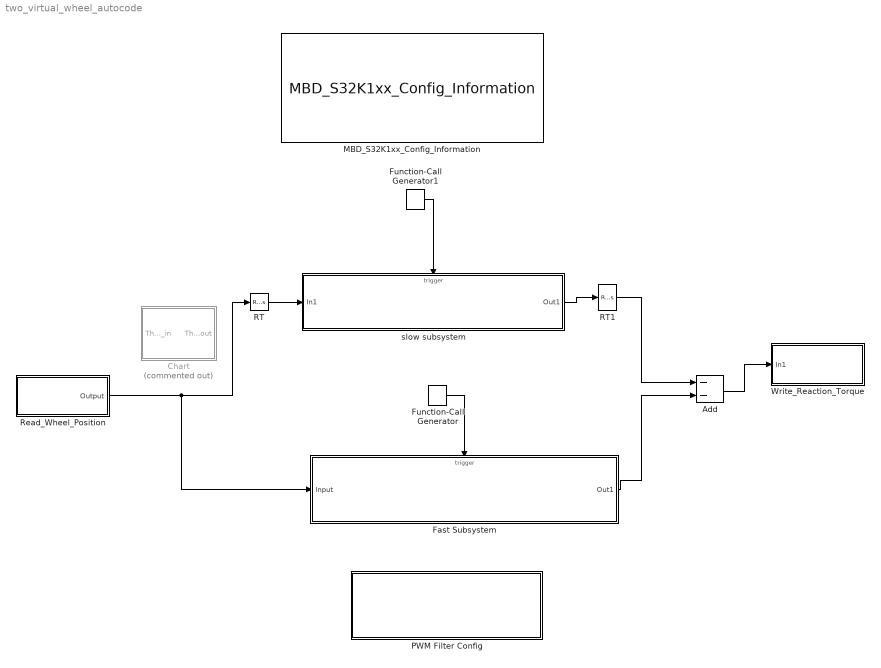
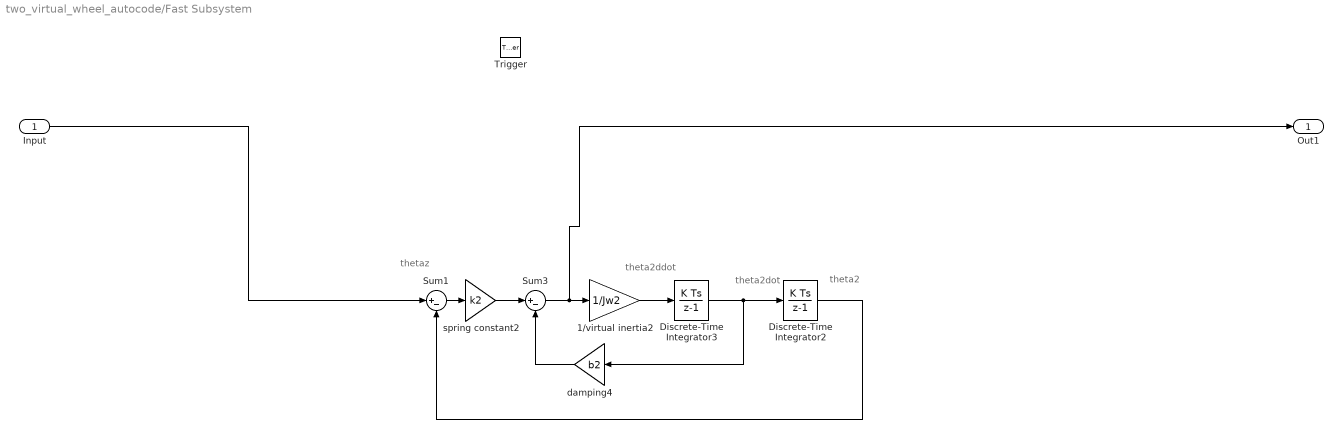
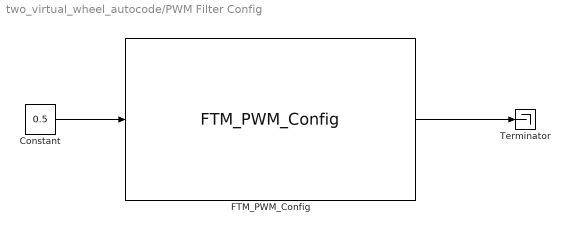
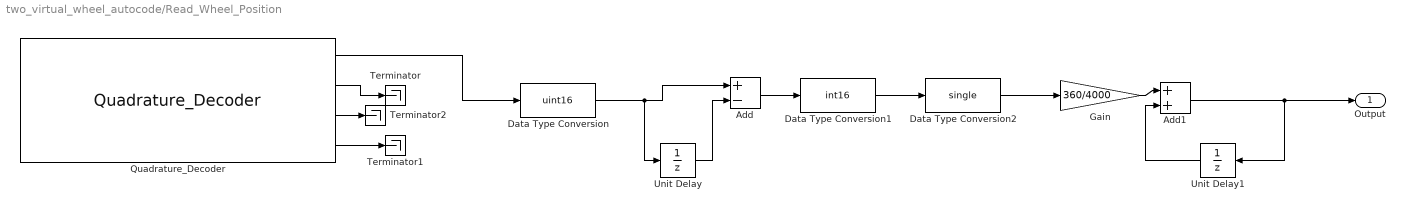
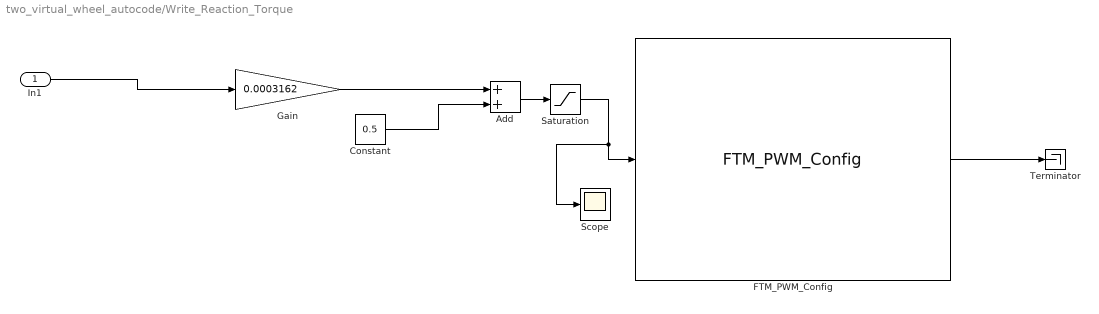
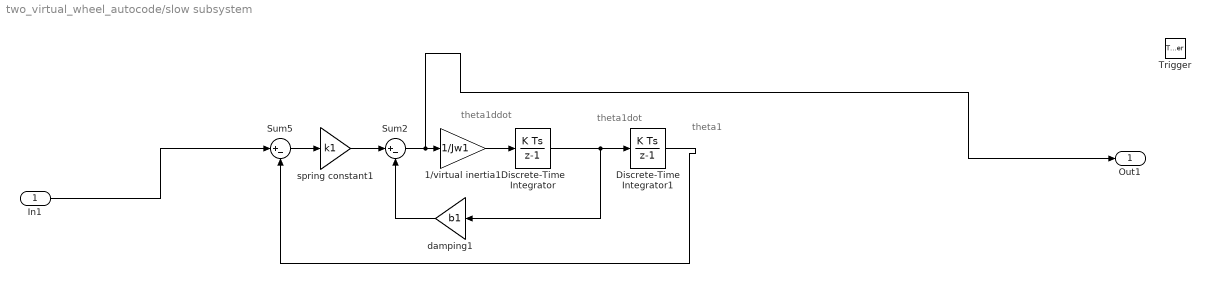
== stateflow chart two_virtual_wheel_autocode/Chart ==
  state zero
    du: Theta_out = 0
  state above
    du: Theta_out = 45
  state Below
    du: Theta_out = -45
  (default) -> zero
  above -> zero : [Theta_in < 45]
  zero -> above [order 1] : [Theta_in >= 45]
  Below -> zero : [Theta_in > -45]
  zero -> Below [order 2] : [Theta_in <= -45]
  data: Theta_in input single; Theta_out output single

/*
 * Academic License - for use in teaching, academic research, and meeting
 * course requirements at degree granting institutions only.  Not for
 * government, commercial, or other organizational use.
 *
 * File: two_virtual_wheel_autocode.c
 *
 * Code generated for Simulink model 'two_virtual_wheel_autocode'.
 *
 * Model version                   : 1.13
 * Simulink Coder version          : 9.3 (R2020a) 18-Nov-2019
 * MBDT for S32K1xx Series Version : 4.1.0 (R2017b-R2019a) 22-Jul-2019
 * C/C++ source code generated on  : Thu Sep 19 14:09:02 2024
 *
 * Target selection: mbd_s32k.tlc
 * Embedded hardware selection: ARM Compatible->ARM Cortex
 * Code generation objective: Traceability
 * Validation result: Not run
 */

#include "two_virtual_wheel_autocode.h"
#include "two_virtual_wheel_autocode_private.h"

/* Block signals (default storage) */
B_two_virtual_wheel_autocode_T two_virtual_wheel_autocode_B;

/* Block states (default storage) */
DW_two_virtual_wheel_autocode_T two_virtual_wheel_autocode_DW;

/* Real-time model */
RT_MODEL_two_virtual_wheel_au_T two_virtual_wheel_autocode_M_;
RT_MODEL_two_virtual_wheel_au_T *const two_virtual_wheel_autocode_M =
  &two_virtual_wheel_autocode_M_;
static void rate_scheduler(void);

/*
 *   This function updates active task flag for each subrate.
 * The function is called at model base rate, hence the
 * generated code self-manages all its subrates.
 */
static void rate_scheduler(void)
{
  /* Compute which subrates run during the next base time step.  Subrates
   * are an integer multiple of the base rate counter.  Therefore, the subtask
   * counter is reset when it reaches its limit (zero means run).
   */
  (two_virtual_wheel_autocode_M->Timing.TaskCounters.TID[1])++;
  if ((two_virtual_wheel_autocode_M->Timing.TaskCounters.TID[1]) > 9) {/* Sample time: [0.02s, 0.0s] */
    two_virtual_wheel_autocode_M->Timing.TaskCounters.TID[1] = 0;
  }
}

/* Enable for function-call system: '<Root>/Fast Subsystem' */
void fast_subsystem_Enable(DW_fast_subsystem_T *localDW)
{
  localDW->FastSubsystem_RESET_ELAPS_T = true;

  /* Enable for DiscreteIntegrator: '<S1>/Discrete-Time Integrator2' */
  localDW->DiscreteTimeIntegrator2_SYSTEM_ = 1U;

  /* Enable for DiscreteIntegrator: '<S1>/Discrete-Time Integrator3' */
  localDW->DiscreteTimeIntegrator3_SYSTEM_ = 1U;
}

/* Output and update for function-call system: '<Root>/Fast Subsystem' */
void fast_subsystem(RT_MODEL_two_virtual_wheel_au_T * const
                    two_virtual_wheel_autocode_M, real32_T rtu_Input, real32_T
                    *rty_Out1, DW_fast_subsystem_T *localDW)
{
  uint32_T FastSubsystem_ELAPS_T;
  if (localDW->FastSubsystem_RESET_ELAPS_T) {
    FastSubsystem_ELAPS_T = 0U;
  } else {
    FastSubsystem_ELAPS_T = two_virtual_wheel_autocode_M->Timing.clockTick0 -
      localDW->FastSubsystem_PREV_T;
  }

  localDW->FastSubsystem_PREV_T =
    two_virtual_wheel_autocode_M->Timing.clockTick0;
  localDW->FastSubsystem_RESET_ELAPS_T = false;

  /* DiscreteIntegrator: '<S1>/Discrete-Time Integrator2' */
  if (localDW->DiscreteTimeIntegrator2_SYSTEM_ == 0) {
    localDW->DiscreteTimeIntegrator2_DSTATE += 0.002F * (real32_T)
      FastSubsystem_ELAPS_T * localDW->DiscreteTimeIntegrator2_PREV_U;
  }

  /* End of DiscreteIntegrator: '<S1>/Discrete-Time Integrator2' */

  /* DiscreteIntegrator: '<S1>/Discrete-Time Integrator3' */
  if (localDW->DiscreteTimeIntegrator3_SYSTEM_ == 0) {
    localDW->DiscreteTimeIntegrator3_DSTATE += 0.002F * (real32_T)
      FastSubsystem_ELAPS_T * localDW->DiscreteTimeIntegrator3_PREV_U;
  }

  /* End of DiscreteIntegrator: '<S1>/Discrete-Time Integrator3' */

  /* Sum: '<S1>/Sum3' incorporates:
   *  Gain: '<S1>/damping4'
   *  Gain: '<S1>/spring  constant2'
   *  Sum: '<S1>/Sum1'
   */
  *rty_Out1 = (rtu_Input - localDW->DiscreteTimeIntegrator2_DSTATE) * 3.75F -
    0.0075F * localDW->DiscreteTimeIntegrator3_DSTATE;

  /* Update for DiscreteIntegrator: '<S1>/Discrete-Time Integrator2' */
  localDW->DiscreteTimeIntegrator2_SYSTEM_ = 0U;
  localDW->DiscreteTimeIntegrator2_PREV_U =
    localDW->DiscreteTimeIntegrator3_DSTATE;

  /* Update for DiscreteIntegrator: '<S1>/Discrete-Time Integrator3' incorporates:
   *  Gain: '<S1>/1//virtual inertia2'
   */
  localDW->DiscreteTimeIntegrator3_SYSTEM_ = 0U;
  localDW->DiscreteTimeIntegrator3_PREV_U = 13.8696251F * *rty_Out1;
}

/* Enable for function-call system: '<Root>/slow subsystem' */
void slow_subsystem_Enable(DW_slow_subsystem_T *localDW)
{
  localDW->slowsubsystem_RESET_ELAPS_T = true;

  /* Enable for DiscreteIntegrator: '<S5>/Discrete-Time Integrator1' */
  localDW->DiscreteTimeIntegrator1_SYSTEM_ = 1U;

  /* Enable for DiscreteIntegrator: '<S5>/Discrete-Time Integrator' */
  localDW->DiscreteTimeIntegrator_SYSTEM_E = 1U;
}

/* Output and update for function-call system: '<Root>/slow subsystem' */
void slow_subsystem(RT_MODEL_two_virtual_wheel_au_T * const
                    two_virtual_wheel_autocode_M, real32_T rtu_In1, real32_T
                    *rty_Out1, DW_slow_subsystem_T *localDW)
{
  uint32_T slowsubsystem_ELAPS_T;
  if (localDW->slowsubsystem_RESET_ELAPS_T) {
    slowsubsystem_ELAPS_T = 0U;
  } else {
    slowsubsystem_ELAPS_T = two_virtual_wheel_autocode_M->Timing.clockTick1 -
      localDW->slowsubsystem_PREV_T;
  }

  localDW->slowsubsystem_PREV_T =
    two_virtual_wheel_autocode_M->Timing.clockTick1;
  localDW->slowsubsystem_RESET_ELAPS_T = false;

  /* DiscreteIntegrator: '<S5>/Discrete-Time Integrator1' */
  if (localDW->DiscreteTimeIntegrator1_SYSTEM_ == 0) {
    localDW->DiscreteTimeIntegrator1_DSTATE += 0.02F * (real32_T)
      slowsubsystem_ELAPS_T * localDW->DiscreteTimeIntegrator1_PREV_U;
  }

  /* End of DiscreteIntegrator: '<S5>/Discrete-Time Integrator1' */

  /* DiscreteIntegrator: '<S5>/Discrete-Time Integrator' */
  if (localDW->DiscreteTimeIntegrator_SYSTEM_E == 0) {
    localDW->DiscreteTimeIntegrator_DSTATE += 0.02F * (real32_T)
      slowsubsystem_ELAPS_T * localDW->DiscreteTimeIntegrator_PREV_U;
  }

  /* End of DiscreteIntegrator: '<S5>/Discrete-Time Integrator' */

  /* Sum: '<S5>/Sum2' incorporates:
   *  Gain: '<S5>/damping1'
   *  Gain: '<S5>/spring  constant1'
   *  Sum: '<S5>/Sum5'
   */
  *rty_Out1 = (rtu_In1 - localDW->DiscreteTimeIntegrator1_DSTATE) * 7.5F - 0.15F
    * localDW->DiscreteTimeIntegrator_DSTATE;

  /* Update for DiscreteIntegrator: '<S5>/Discrete-Time Integrator1' */
  localDW->DiscreteTimeIntegrator1_SYSTEM_ = 0U;
  localDW->DiscreteTimeIntegrator1_PREV_U =
    localDW->DiscreteTimeIntegrator_DSTATE;

  /* Update for DiscreteIntegrator: '<S5>/Discrete-Time Integrator' incorporates:
   *  Gain: '<S5>/1//virtual inertia1'
   */
  localDW->DiscreteTimeIntegrator_SYSTEM_E = 0U;
  localDW->DiscreteTimeIntegrator_PREV_U = 5.33333349F * *rty_Out1;
}

/* Model step function */
void two_virtual_wheel_autocode_step(void)
{
  real32_T Sum3;
  real_T u0;

  /* S-Function (ftm_s32k_quadrature_decoder): '<S3>/Quadrature_Decoder' */

  /* FTM2: get counter value */
  two_virtual_wheel_autocode_B.Quadrature_Decoder_o2 = FTM_DRV_GetQuadDir(FTM2);
  two_virtual_wheel_autocode_B.Quadrature_Decoder_o4 =
    FTM_DRV_GetQuadTimerOverflowDir(FTM2);
  two_virtual_wheel_autocode_B.Quadrature_Decoder_o3 =
    FTM_DRV_HasTimerOverflowed(FTM2);
  two_virtual_wheel_autocode_B.Quadrature_Decoder_o1 = FTM_DRV_GetCounter(FTM2);
  FTM_DRV_ClearTimerOverflow(FTM2);

  /* Sum: '<S3>/Add1' incorporates:
   *  DataTypeConversion: '<S3>/Data Type Conversion1'
   *  DataTypeConversion: '<S3>/Data Type Conversion2'
   *  Gain: '<S3>/Gain'
   *  Sum: '<S3>/Add'
   *  UnitDelay: '<S3>/Unit Delay'
   *  UnitDelay: '<S3>/Unit Delay1'
   */
  two_virtual_wheel_autocode_DW.UnitDelay1_DSTATE += (real32_T)(int16_T)
    (two_virtual_wheel_autocode_B.Quadrature_Decoder_o1 -
     two_virtual_wheel_autocode_DW.UnitDelay_DSTATE) * 0.09F;

  /* S-Function (fcncallgen): '<Root>/Function-Call Generator' incorporates:
   *  SubSystem: '<Root>/Fast Subsystem'
   */
  /* UnitDelay: '<S3>/Unit Delay1' */
  fast_subsystem(two_virtual_wheel_autocode_M,
                 two_virtual_wheel_autocode_DW.UnitDelay1_DSTATE, &Sum3,
                 &two_virtual_wheel_autocode_DW.FastSubsystem);

  /* End of Outputs for S-Function (fcncallgen): '<Root>/Function-Call Generator' */

  /* RateTransition: '<Root>/RT1' */
  if (two_virtual_wheel_autocode_M->Timing.TaskCounters.TID[1] == 0) {
    two_virtual_wheel_autocode_B.RT1 = two_virtual_wheel_autocode_DW.RT1_Buffer0;
  }

  /* End of RateTransition: '<Root>/RT1' */

  /* Outputs for Atomic SubSystem: '<Root>/Write_Reaction_Torque' */
  /* Sum: '<S4>/Add' incorporates:
   *  Constant: '<S4>/Constant'
   *  Gain: '<S4>/Gain'
   *  Sum: '<Root>/Add'
   */
  u0 = ((0.0F - two_virtual_wheel_autocode_B.RT1) - Sum3) * 0.0003162F + 0.5;

  /* Saturate: '<S4>/Saturation' */
  if (u0 > 0.75999999046325684) {
    two_virtual_wheel_autocode_B.Saturation = 0.76F;
  } else if (u0 < 0.23999999463558197) {
    two_virtual_wheel_autocode_B.Saturation = 0.24F;
  } else {
    two_virtual_wheel_autocode_B.Saturation = (real32_T)u0;
  }

  /* End of Saturate: '<S4>/Saturation' */

  /* S-Function (ftm_s32k_pwm_config): '<S4>/FTM_PWM_Config' */
  {
    uint16_t dutyA = FTM_MAX_DUTY_CYCLE *
      two_virtual_wheel_autocode_B.Saturation;
    FTM_DRV_UpdatePwmChannel(FTM_PWM0, 0U, FTM_PWM_UPDATE_IN_DUTY_CYCLE, dutyA,
      0, true);
  }

  /* Simulation Outputs */
  two_virtual_wheel_autocode_B.FTM_PWM_Config_j = (float)
    two_virtual_wheel_autocode_B.Saturation;

  /* End of Outputs for SubSystem: '<Root>/Write_Reaction_Torque' */

  /* RateTransition: '<Root>/RT' incorporates:
   *  UnitDelay: '<S3>/Unit Delay1'
   */
  if (two_virtual_wheel_autocode_M->Timing.TaskCounters.TID[1] == 0) {
    /* S-Function (fcncallgen): '<Root>/Function-Call Generator1' incorporates:
     *  SubSystem: '<Root>/slow subsystem'
     */
    slow_subsystem(two_virtual_wheel_autocode_M,
                   two_virtual_wheel_autocode_DW.UnitDelay1_DSTATE,
                   &two_virtual_wheel_autocode_B.Sum2,
                   &two_virtual_wheel_autocode_DW.slowsubsystem);

    /* End of Outputs for S-Function (fcncallgen): '<Root>/Function-Call Generator1' */
  }

  /* End of RateTransition: '<Root>/RT' */

  /* S-Function (ftm_s32k_pwm_config): '<S2>/FTM_PWM_Config' incorporates:
   *  Constant: '<S2>/Constant'
   */
  {
    uint16_t dutyA = FTM_MAX_DUTY_CYCLE * 0.5F;
    FTM_DRV_UpdatePwmChannel(FTM_PWM3, 0U, FTM_PWM_UPDATE_IN_DUTY_CYCLE, dutyA,
      0, true);
  }

  /* Simulation Outputs */
  two_virtual_wheel_autocode_B.FTM_PWM_Config = (float) 0.5F;

  /* Update for UnitDelay: '<S3>/Unit Delay' */
  two_virtual_wheel_autocode_DW.UnitDelay_DSTATE =
    two_virtual_wheel_autocode_B.Quadrature_Decoder_o1;

  /* Update for RateTransition: '<Root>/RT1' */
  if (two_virtual_wheel_autocode_M->Timing.TaskCounters.TID[1] == 0) {
    two_virtual_wheel_autocode_DW.RT1_Buffer0 =
      two_virtual_wheel_autocode_B.Sum2;
  }

  /* End of Update for RateTransition: '<Root>/RT1' */

  /* Update absolute time for base rate */
  /* The "clockTick0" counts the number of times the code of this task has
   * been executed. The resolution of this integer timer is 0.002, which is the step size
   * of the task. Size of "clockTick0" ensures timer will not overflow during the
   * application lifespan selected.
   */
  two_virtual_wheel_autocode_M->Timing.clockTick0++;
  if (two_virtual_wheel_autocode_M->Timing.TaskCounters.TID[1] == 0) {
    /* Update absolute timer for sample time: [0.02s, 0.0s] */
    /* The "clockTick1" counts the number of times the code of this task has
     * been executed. The resolution of this integer timer is 0.02, which is the step size
     * of the task. Size of "clockTick1" ensures timer will not overflow during the
     * application lifespan selected.
     */
    two_virtual_wheel_autocode_M->Timing.clockTick1++;
  }

  rate_scheduler();
}
